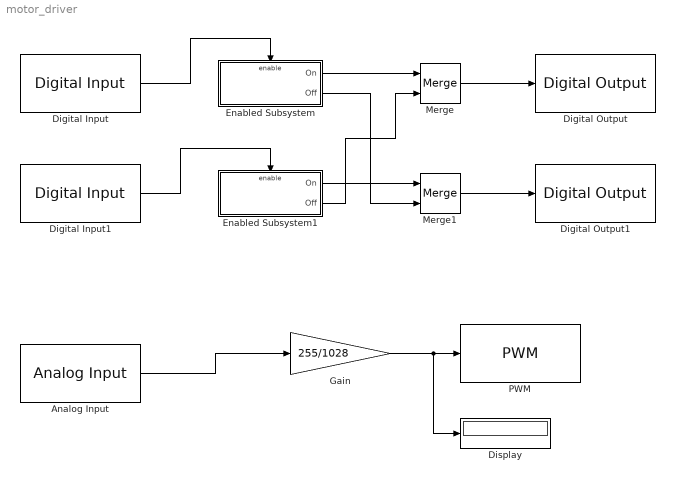
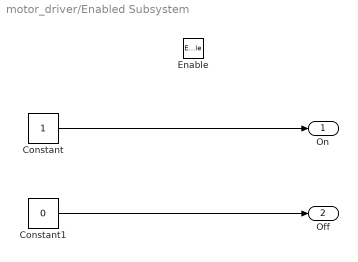
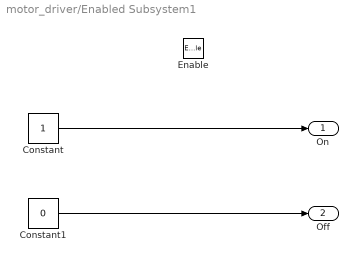
/*
 * File: motor_driver.c
 *
 * Code generated for Simulink model 'motor_driver'.
 *
 * Model version                  : 1.1
 * Simulink Coder version         : 9.8 (R2022b) 13-May-2022
 * C/C++ source code generated on : Tue Mar 19 18:48:50 2024
 *
 * Target selection: ert.tlc
 * Embedded hardware selection: Atmel->AVR
 * Code generation objectives: Unspecified
 * Validation result: Not run
 */

#include "motor_driver.h"
#include "rtwtypes.h"
#include "motor_driver_private.h"
#include "motor_driver_types.h"
#include <math.h>
#include "rt_nonfinite.h"

/* Block signals (default storage) */
B_motor_driver_T motor_driver_B;

/* Block states (default storage) */
DW_motor_driver_T motor_driver_DW;

/* Real-time model */
static RT_MODEL_motor_driver_T motor_driver_M_;
RT_MODEL_motor_driver_T *const motor_driver_M = &motor_driver_M_;
static void rate_monotonic_scheduler(void);

/*
 * Set which subrates need to run this base step (base rate always runs).
 * This function must be called prior to calling the model step function
 * in order to remember which rates need to run this base step.  The
 * buffering of events allows for overlapping preemption.
 */
void motor_driver_SetEventsForThisBaseStep(boolean_T *eventFlags)
{
  /* Task runs when its counter is zero, computed via rtmStepTask macro */
  eventFlags[1] = ((boolean_T)rtmStepTask(motor_driver_M, 1));
}

/*
 *         This function updates active task flag for each subrate
 *         and rate transition flags for tasks that exchange data.
 *         The function assumes rate-monotonic multitasking scheduler.
 *         The function must be called at model base rate so that
 *         the generated code self-manages all its subrates and rate
 *         transition flags.
 */
static void rate_monotonic_scheduler(void)
{
  /* Compute which subrates run during the next base time step.  Subrates
   * are an integer multiple of the base rate counter.  Therefore, the subtask
   * counter is reset when it reaches its limit (zero means run).
   */
  (motor_driver_M->Timing.TaskCounters.TID[1])++;
  if ((motor_driver_M->Timing.TaskCounters.TID[1]) > 99) {/* Sample time: [0.1s, 0.0s] */
    motor_driver_M->Timing.TaskCounters.TID[1] = 0;
  }
}

/*
 * Output and update for enable system:
 *    '<Root>/Enabled Subsystem'
 *    '<Root>/Enabled Subsystem1'
 */
void motor_driv_EnabledSubsystem(boolean_T rtu_Enable, real_T *rty_On, real_T
  *rty_Off, P_EnabledSubsystem_motor_driv_T *localP)
{
  /* Outputs for Enabled SubSystem: '<Root>/Enabled Subsystem' incorporates:
   *  EnablePort: '<S1>/Enable'
   */
  if (rtu_Enable) {
    /* SignalConversion generated from: '<S1>/On' incorporates:
     *  Constant: '<S1>/Constant'
     */
    *rty_On = localP->Constant_Value;

    /* SignalConversion generated from: '<S1>/Off' incorporates:
     *  Constant: '<S1>/Constant1'
     */
    *rty_Off = localP->Constant1_Value;
  }

  /* End of Outputs for SubSystem: '<Root>/Enabled Subsystem' */
}

real_T rt_roundd_snf(real_T u)
{
  real_T y;
  if (fabs(u) < 4.503599627370496E+15) {
    if (u >= 0.5) {
      y = floor(u + 0.5);
    } else if (u > -0.5) {
      y = u * 0.0;
    } else {
      y = ceil(u - 0.5);
    }
  } else {
    y = u;
  }

  return y;
}

/* Model step function for TID0 */
void motor_driver_step0(void)          /* Sample time: [0.001s, 0.0s] */
{
  {                                    /* Sample time: [0.001s, 0.0s] */
    rate_monotonic_scheduler();
  }
}

/* Model step function for TID1 */
void motor_driver_step1(void)          /* Sample time: [0.1s, 0.0s] */
{
  MW_AnalogIn_ResultDataType_Type datatype_id;
  codertarget_arduinobase_int_n_T *obj_0;
  codertarget_arduinobase_inter_T *obj;
  real_T u0;
  uint16_T b_varargout_1;
  uint8_T tmp;
  boolean_T b_value;

  /* MATLABSystem: '<Root>/Analog Input' */
  if (motor_driver_DW.obj.SampleTime != motor_driver_P.AnalogInput_SampleTime) {
    motor_driver_DW.obj.SampleTime = motor_driver_P.AnalogInput_SampleTime;
  }

  obj = &motor_driver_DW.obj;
  obj->AnalogInDriverObj.MW_ANALOGIN_HANDLE = MW_AnalogIn_GetHandle(18UL);
  datatype_id = MW_ANALOGIN_UINT16;
  MW_AnalogInSingle_ReadResult
    (motor_driver_DW.obj.AnalogInDriverObj.MW_ANALOGIN_HANDLE, &b_varargout_1,
     datatype_id);

  /* MATLABSystem: '<Root>/PWM' incorporates:
   *  Gain: '<Root>/Gain'
   *  MATLABSystem: '<Root>/Analog Input'
   */
  obj_0 = &motor_driver_DW.obj_go;
  obj_0->PWMDriverObj.MW_PWM_HANDLE = MW_PWM_GetHandle(11UL);
  u0 = (real_T)((uint32_T)motor_driver_P.Gain_Gain * b_varargout_1) *
    3.814697265625E-6;
  if (!(u0 <= 255.0)) {
    u0 = 255.0;
  }

  MW_PWM_SetDutyCycle(motor_driver_DW.obj_go.PWMDriverObj.MW_PWM_HANDLE, u0);

  /* End of MATLABSystem: '<Root>/PWM' */

  /* MATLABSystem: '<Root>/Digital Input' */
  if (motor_driver_DW.obj_p.SampleTime != motor_driver_P.DigitalInput_SampleTime)
  {
    motor_driver_DW.obj_p.SampleTime = motor_driver_P.DigitalInput_SampleTime;
  }

  b_value = readDigitalPin(3);

  /* Outputs for Enabled SubSystem: '<Root>/Enabled Subsystem' */
  motor_driv_EnabledSubsystem(b_value, &motor_driver_B.Merge,
    &motor_driver_B.Merge1, &motor_driver_P.EnabledSubsystem);

  /* End of MATLABSystem: '<Root>/Digital Input' */
  /* End of Outputs for SubSystem: '<Root>/Enabled Subsystem' */

  /* MATLABSystem: '<Root>/Digital Input1' */
  if (motor_driver_DW.obj_g.SampleTime !=
      motor_driver_P.DigitalInput1_SampleTime) {
    motor_driver_DW.obj_g.SampleTime = motor_driver_P.DigitalInput1_SampleTime;
  }

  b_value = readDigitalPin(4);

  /* Outputs for Enabled SubSystem: '<Root>/Enabled Subsystem1' */
  motor_driv_EnabledSubsystem(b_value, &motor_driver_B.Merge1,
    &motor_driver_B.Merge, &motor_driver_P.EnabledSubsystem1);

  /* End of MATLABSystem: '<Root>/Digital Input1' */
  /* End of Outputs for SubSystem: '<Root>/Enabled Subsystem1' */

  /* MATLABSystem: '<Root>/Digital Output' */
  u0 = rt_roundd_snf(motor_driver_B.Merge);
  if (u0 < 256.0) {
    if (u0 >= 0.0) {
      tmp = (uint8_T)u0;
    } else {
      tmp = 0U;
    }
  } else {
    tmp = MAX_uint8_T;
  }

  writeDigitalPin(9, tmp);

  /* End of MATLABSystem: '<Root>/Digital Output' */

  /* MATLABSystem: '<Root>/Digital Output1' */
  u0 = rt_roundd_snf(motor_driver_B.Merge1);
  if (u0 < 256.0) {
    if (u0 >= 0.0) {
      tmp = (uint8_T)u0;
    } else {
      tmp = 0U;
    }
  } else {
    tmp = MAX_uint8_T;
  }

  writeDigitalPin(10, tmp);

  /* End of MATLABSystem: '<Root>/Digital Output1' */
}
